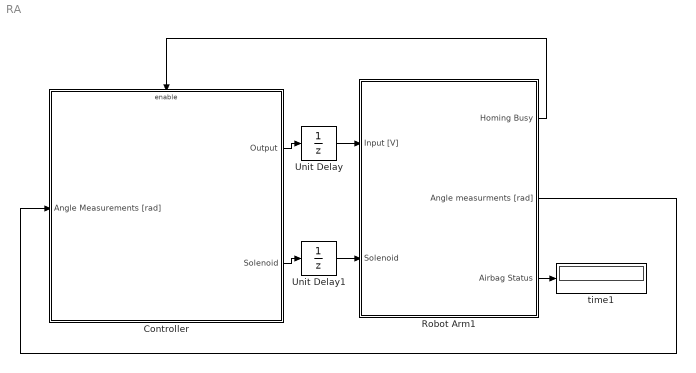
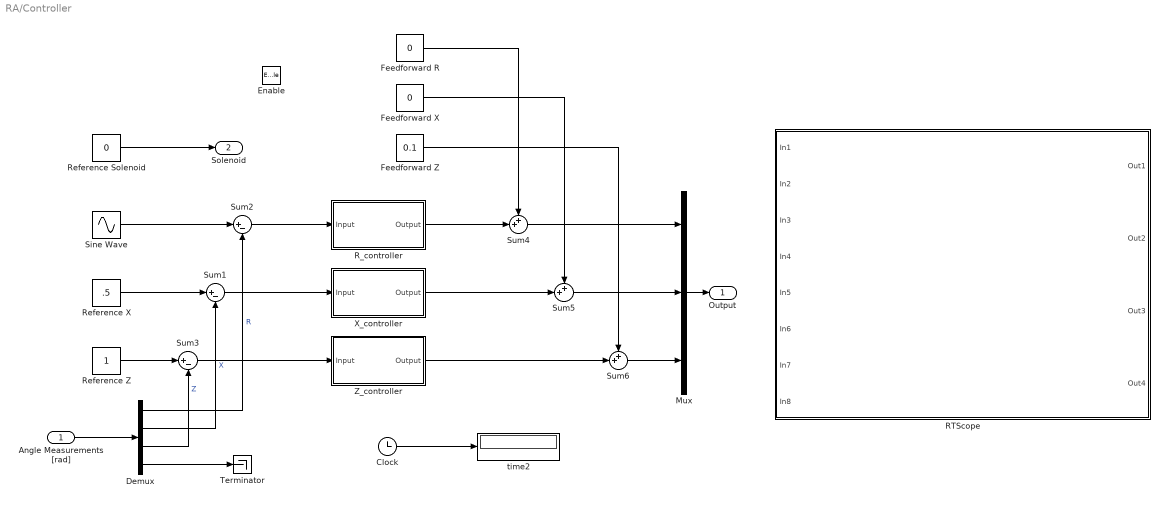
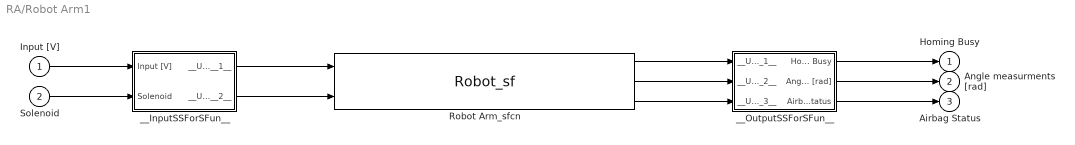
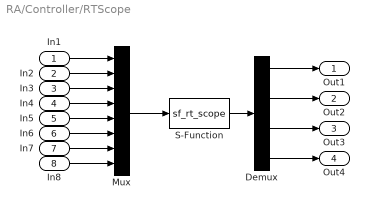
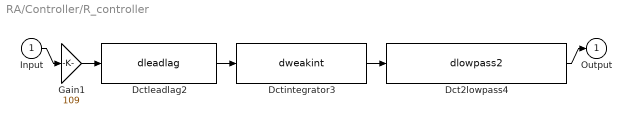
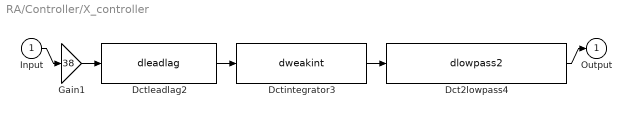
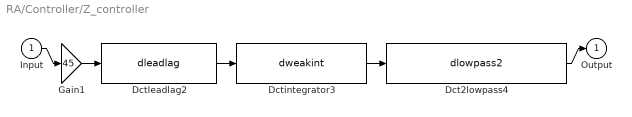
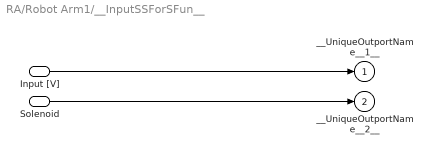
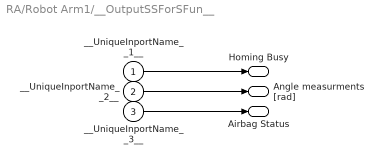
/*
 * RA.c
 *
 * Academic License - for use in teaching, academic research, and meeting
 * course requirements at degree granting institutions only.  Not for
 * government, commercial, or other organizational use.
 *
 * Code generation for model "RA".
 *
 * Model version              : 1.933
 * Simulink Coder version : 8.9 (R2015b) 13-Aug-2015
 * C source code generated on : Fri Apr  8 10:14:30 2016
 *
 * Target selection: ectarget.tlc
 * Note: GRT includes extra infrastructure and instrumentation for prototyping
 * Embedded hardware selection: 32-bit Generic
 * Code generation objectives: Unspecified
 * Validation result: Not run
 */

#include "RA.h"
#include "RA_private.h"
#include "RA_dt.h"
#undef S_FUNCTION_NAME
#if !defined(RTW_GENERATED_SFCN_TUNABLE_PRMS_Robot_sf)
#define RTW_GENERATED_SFCN_TUNABLE_PRMS_Robot_sf
#endif

#include "Robot_sf.h"

const real_T RA_RGND = 0.0;            /* real_T ground */

/* Block signals (auto storage) */
B_RA_T RA_B;

/* Block states (auto storage) */
DW_RA_T RA_DW;

/* Real-time model */
RT_MODEL_RA_T RA_M_;
RT_MODEL_RA_T *const RA_M = &RA_M_;

/* Model output function */
void RA_output(void)
{
  /* Reset subsysRan breadcrumbs */
  srClearBC(RA_DW.Controller_SubsysRanBC);

  /* UnitDelay: '<Root>/Unit Delay' */
  RA_B.UnitDelay[0] = RA_DW.UnitDelay_DSTATE[0];
  RA_B.UnitDelay[1] = RA_DW.UnitDelay_DSTATE[1];
  RA_B.UnitDelay[2] = RA_DW.UnitDelay_DSTATE[2];

  /* UnitDelay: '<Root>/Unit Delay1' */
  RA_B.UnitDelay1 = RA_DW.UnitDelay1_DSTATE;

  /* RTW Generated Level2 S-Function Block: '<S2>/Robot Arm_sfcn' (Robot_sf) */
  {
    SimStruct *rts = RA_M->childSfunctions[10];
    sfcnOutputs(rts, 0);
  }

  /* Outputs for Enabled SubSystem: '<Root>/Controller' incorporates:
   *  EnablePort: '<S1>/Enable'
   */
  if (RA_B.RobotArm_sfcn_o1 > 0.0) {
    if (!RA_DW.Controller_MODE) {
      RA_DW.Controller_MODE = true;
    }
  } else {
    if (RA_DW.Controller_MODE) {
      RA_DW.Controller_MODE = false;
    }
  }

  if (RA_DW.Controller_MODE) {
    /* Gain: '<S4>/Gain1' incorporates:
     *  Sin: '<S1>/Sine Wave'
     *  Sum: '<S1>/Sum2'
     */
    RA_B.Gain1 = ((sin(RA_P.SineWave_Freq * RA_M->Timing.t[0] +
                       RA_P.SineWave_Phase) * RA_P.SineWave_Amp +
                   RA_P.SineWave_Bias) - RA_B.RobotArm_sfcn_o2[0]) *
      RA_P.Gain1_Gain;

    /* Level2 S-Function Block: '<S4>/Dctleadlag2' (dleadlag) */
    {
      SimStruct *rts = RA_M->childSfunctions[0];
      sfcnOutputs(rts, 1);
    }

    /* Level2 S-Function Block: '<S4>/Dctintegrator3' (dweakint) */
    {
      SimStruct *rts = RA_M->childSfunctions[1];
      sfcnOutputs(rts, 1);
    }

    /* Level2 S-Function Block: '<S4>/Dct2lowpass4' (dlowpass2) */
    {
      SimStruct *rts = RA_M->childSfunctions[2];
      sfcnOutputs(rts, 1);
    }

    /* Sum: '<S1>/Sum4' incorporates:
     *  Constant: '<S1>/Feedforward R'
     */
    RA_B.Sum4 = RA_P.FeedforwardR_Value + RA_B.Dct2lowpass4;

    /* Gain: '<S5>/Gain1' incorporates:
     *  Constant: '<S1>/Reference X'
     *  Sum: '<S1>/Sum1'
     */
    RA_B.Gain1_a = (RA_P.ReferenceX_Value - RA_B.RobotArm_sfcn_o2[1]) *
      RA_P.Gain1_Gain_c;

    /* Level2 S-Function Block: '<S5>/Dctleadlag2' (dleadlag) */
    {
      SimStruct *rts = RA_M->childSfunctions[3];
      sfcnOutputs(rts, 1);
    }

    /* Level2 S-Function Block: '<S5>/Dctintegrator3' (dweakint) */
    {
      SimStruct *rts = RA_M->childSfunctions[4];
      sfcnOutputs(rts, 1);
    }

    /* Level2 S-Function Block: '<S5>/Dct2lowpass4' (dlowpass2) */
    {
      SimStruct *rts = RA_M->childSfunctions[5];
      sfcnOutputs(rts, 1);
    }

    /* Sum: '<S1>/Sum5' incorporates:
     *  Constant: '<S1>/Feedforward X'
     */
    RA_B.Sum5 = RA_P.FeedforwardX_Value + RA_B.Dct2lowpass4_l;

    /* Gain: '<S6>/Gain1' incorporates:
     *  Constant: '<S1>/Reference Z'
     *  Sum: '<S1>/Sum3'
     */
    RA_B.Gain1_ak = (RA_P.ReferenceZ_Value - RA_B.RobotArm_sfcn_o2[2]) *
      RA_P.Gain1_Gain_d;

    /* Level2 S-Function Block: '<S6>/Dctleadlag2' (dleadlag) */
    {
      SimStruct *rts = RA_M->childSfunctions[6];
      sfcnOutputs(rts, 1);
    }

    /* Level2 S-Function Block: '<S6>/Dctintegrator3' (dweakint) */
    {
      SimStruct *rts = RA_M->childSfunctions[7];
      sfcnOutputs(rts, 1);
    }

    /* Level2 S-Function Block: '<S6>/Dct2lowpass4' (dlowpass2) */
    {
      SimStruct *rts = RA_M->childSfunctions[8];
      sfcnOutputs(rts, 1);
    }

    /* Sum: '<S1>/Sum6' incorporates:
     *  Constant: '<S1>/Feedforward Z'
     */
    RA_B.Sum6 = RA_P.FeedforwardZ_Value + RA_B.Dct2lowpass4_h;

    /* Constant: '<S1>/Reference Solenoid' */
    RA_B.ReferenceSolenoid = RA_P.ReferenceSolenoid_Value;

    /* Clock: '<S1>/Clock' */
    RA_B.Clock = RA_M->Timing.t[0];

    /* Level2 S-Function Block: '<S3>/S-Function' (sf_rt_scope) */
    {
      SimStruct *rts = RA_M->childSfunctions[9];
      sfcnOutputs(rts, 0);
    }

    srUpdateBC(RA_DW.Controller_SubsysRanBC);
  }

  /* End of Outputs for SubSystem: '<Root>/Controller' */
}

/* Model update function */
void RA_update(void)
{
  /* Update for UnitDelay: '<Root>/Unit Delay' */
  RA_DW.UnitDelay_DSTATE[0] = RA_B.Sum4;
  RA_DW.UnitDelay_DSTATE[1] = RA_B.Sum5;
  RA_DW.UnitDelay_DSTATE[2] = RA_B.Sum6;

  /* Update for UnitDelay: '<Root>/Unit Delay1' */
  RA_DW.UnitDelay1_DSTATE = RA_B.ReferenceSolenoid;

  /* RTW Generated Level2 S-Function Block: '<S2>/Robot Arm_sfcn' (Robot_sf) */
  {
    SimStruct *rts = RA_M->childSfunctions[10];
    sfcnUpdate(rts, 0);
    if (ssGetErrorStatus(rts) != (NULL))
      return;
  }

  /* Update absolute time for base rate */
  /* The "clockTick0" counts the number of times the code of this task has
   * been executed. The absolute time is the multiplication of "clockTick0"
   * and "Timing.stepSize0". Size of "clockTick0" ensures timer will not
   * overflow during the application lifespan selected.
   * Timer of this task consists of two 32 bit unsigned integers.
   * The two integers represent the low bits Timing.clockTick0 and the high bits
   * Timing.clockTickH0. When the low bit overflows to 0, the high bits increment.
   */
  if (!(++RA_M->Timing.clockTick0)) {
    ++RA_M->Timing.clockTickH0;
  }

  RA_M->Timing.t[0] = RA_M->Timing.clockTick0 * RA_M->Timing.stepSize0 +
    RA_M->Timing.clockTickH0 * RA_M->Timing.stepSize0 * 4294967296.0;

  {
    /* Update absolute timer for sample time: [0.000244140625s, 0.0s] */
    /* The "clockTick1" counts the number of times the code of this task has
     * been executed. The absolute time is the multiplication of "clockTick1"
     * and "Timing.stepSize1". Size of "clockTick1" ensures timer will not
     * overflow during the application lifespan selected.
     * Timer of this task consists of two 32 bit unsigned integers.
     * The two integers represent the low bits Timing.clockTick1 and the high bits
     * Timing.clockTickH1. When the low bit overflows to 0, the high bits increment.
     */
    if (!(++RA_M->Timing.clockTick1)) {
      ++RA_M->Timing.clockTickH1;
    }

    RA_M->Timing.t[1] = RA_M->Timing.clockTick1 * RA_M->Timing.stepSize1 +
      RA_M->Timing.clockTickH1 * RA_M->Timing.stepSize1 * 4294967296.0;
  }
}
